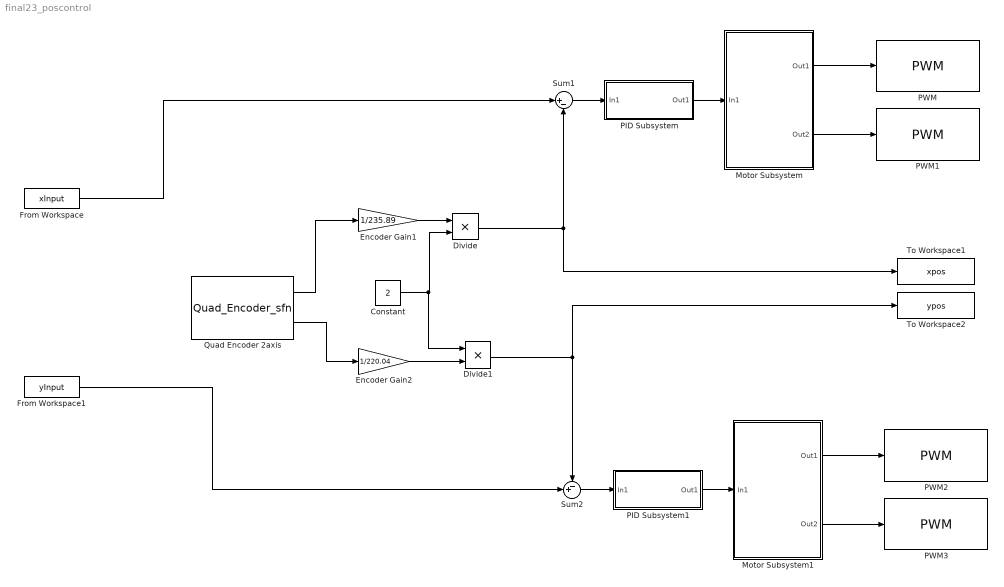
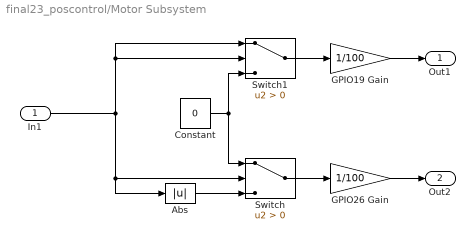
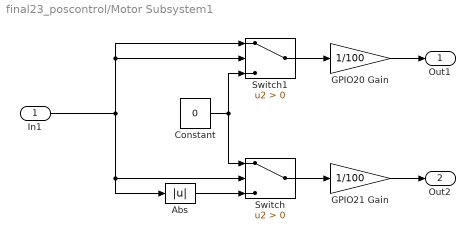
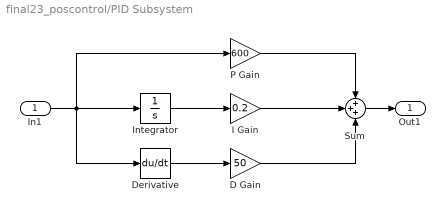
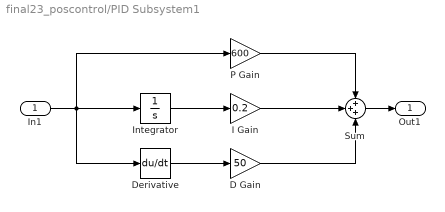
/*
 * final23_poscontrol.c
 *
 * Academic License - for use in teaching, academic research, and meeting
 * course requirements at degree granting institutions only.  Not for
 * government, commercial, or other organizational use.
 *
 * Code generation for model "final23_poscontrol".
 *
 * Model version              : 1.38
 * Simulink Coder version : 9.5 (R2021a) 14-Nov-2020
 * C source code generated on : Tue Dec 12 15:49:32 2023
 *
 * Target selection: ert.tlc
 * Note: GRT includes extra infrastructure and instrumentation for prototyping
 * Embedded hardware selection: ARM Compatible->ARM Cortex
 * Code generation objectives: Unspecified
 * Validation result: Not run
 */

#include "final23_poscontrol.h"
#include "final23_poscontrol_private.h"

/* Block signals (default storage) */
B_final23_poscontrol_T final23_poscontrol_B;

/* Continuous states */
X_final23_poscontrol_T final23_poscontrol_X;

/* Block states (default storage) */
DW_final23_poscontrol_T final23_poscontrol_DW;

/* Real-time model */
static RT_MODEL_final23_poscontrol_T final23_poscontrol_M_;
RT_MODEL_final23_poscontrol_T *const final23_poscontrol_M =
  &final23_poscontrol_M_;

/*
 * This function updates continuous states using the ODE3 fixed-step
 * solver algorithm
 */
static void rt_ertODEUpdateContinuousStates(RTWSolverInfo *si )
{
  /* Solver Matrices */
  static const real_T rt_ODE3_A[3] = {
    1.0/2.0, 3.0/4.0, 1.0
  };

  static const real_T rt_ODE3_B[3][3] = {
    { 1.0/2.0, 0.0, 0.0 },

    { 0.0, 3.0/4.0, 0.0 },

    { 2.0/9.0, 1.0/3.0, 4.0/9.0 }
  };

  time_T t = rtsiGetT(si);
  time_T tnew = rtsiGetSolverStopTime(si);
  time_T h = rtsiGetStepSize(si);
  real_T *x = rtsiGetContStates(si);
  ODE3_IntgData *id = (ODE3_IntgData *)rtsiGetSolverData(si);
  real_T *y = id->y;
  real_T *f0 = id->f[0];
  real_T *f1 = id->f[1];
  real_T *f2 = id->f[2];
  real_T hB[3];
  int_T i;
  int_T nXc = 2;
  rtsiSetSimTimeStep(si,MINOR_TIME_STEP);

  /* Save the state values at time t in y, we'll use x as ynew. */
  (void) memcpy(y, x,
                (uint_T)nXc*sizeof(real_T));

  /* Assumes that rtsiSetT and ModelOutputs are up-to-date */
  /* f0 = f(t,y) */
  rtsiSetdX(si, f0);
  final23_poscontrol_derivatives();

  /* f(:,2) = feval(odefile, t + hA(1), y + f*hB(:,1), args(:)(*)); */
  hB[0] = h * rt_ODE3_B[0][0];
  for (i = 0; i < nXc; i++) {
    x[i] = y[i] + (f0[i]*hB[0]);
  }

  rtsiSetT(si, t + h*rt_ODE3_A[0]);
  rtsiSetdX(si, f1);
  final23_poscontrol_step();
  final23_poscontrol_derivatives();

  /* f(:,3) = feval(odefile, t + hA(2), y + f*hB(:,2), args(:)(*)); */
  for (i = 0; i <= 1; i++) {
    hB[i] = h * rt_ODE3_B[1][i];
  }

  for (i = 0; i < nXc; i++) {
    x[i] = y[i] + (f0[i]*hB[0] + f1[i]*hB[1]);
  }

  rtsiSetT(si, t + h*rt_ODE3_A[1]);
  rtsiSetdX(si, f2);
  final23_poscontrol_step();
  final23_poscontrol_derivatives();

  /* tnew = t + hA(3);
     ynew = y + f*hB(:,3); */
  for (i = 0; i <= 2; i++) {
    hB[i] = h * rt_ODE3_B[2][i];
  }

  for (i = 0; i < nXc; i++) {
    x[i] = y[i] + (f0[i]*hB[0] + f1[i]*hB[1] + f2[i]*hB[2]);
  }

  rtsiSetT(si, tnew);
  rtsiSetSimTimeStep(si,MAJOR_TIME_STEP);
}

/* Model step function */
void final23_poscontrol_step(void)
{
  if (rtmIsMajorTimeStep(final23_poscontrol_M)) {
    /* set solver stop time */
    if (!(final23_poscontrol_M->Timing.clockTick0+1)) {
      rtsiSetSolverStopTime(&final23_poscontrol_M->solverInfo,
                            ((final23_poscontrol_M->Timing.clockTickH0 + 1) *
        final23_poscontrol_M->Timing.stepSize0 * 4294967296.0));
    } else {
      rtsiSetSolverStopTime(&final23_poscontrol_M->solverInfo,
                            ((final23_poscontrol_M->Timing.clockTick0 + 1) *
        final23_poscontrol_M->Timing.stepSize0 +
        final23_poscontrol_M->Timing.clockTickH0 *
        final23_poscontrol_M->Timing.stepSize0 * 4294967296.0));
    }
  }                                    /* end MajorTimeStep */

  /* Update absolute time of base rate at minor time step */
  if (rtmIsMinorTimeStep(final23_poscontrol_M)) {
    final23_poscontrol_M->Timing.t[0] = rtsiGetT
      (&final23_poscontrol_M->solverInfo);
  }

  {
    real_T rtb_Sum;
    real_T rtb_Sum_p;
    real_T rtb_Switch;
    real_T *lastU;
    if (rtmIsMajorTimeStep(final23_poscontrol_M)) {
      /* FromWorkspace: '<Root>/From Workspace' */
      {
        real_T *pDataValues = (real_T *)
          final23_poscontrol_DW.FromWorkspace_PWORK.DataPtr;
        real_T *pTimeValues = (real_T *)
          final23_poscontrol_DW.FromWorkspace_PWORK.TimePtr;
        int_T currTimeIndex =
          final23_poscontrol_DW.FromWorkspace_IWORK.PrevIndex;
        real_T t = (((final23_poscontrol_M->Timing.clockTick1+
                      final23_poscontrol_M->Timing.clockTickH1* 4294967296.0)) *
                    0.001);

        /* Get index */
        if (t <= pTimeValues[0]) {
          currTimeIndex = 0;
        } else if (t >= pTimeValues[9428]) {
          currTimeIndex = 9427;
        } else {
          if (t < pTimeValues[currTimeIndex]) {
            while (t < pTimeValues[currTimeIndex]) {
              currTimeIndex--;
            }
          } else {
            while (t >= pTimeValues[currTimeIndex + 1]) {
              currTimeIndex++;
            }
          }
        }

        final23_poscontrol_DW.FromWorkspace_IWORK.PrevIndex = currTimeIndex;

        /* Post output */
        {
          real_T t1 = pTimeValues[currTimeIndex];
          real_T t2 = pTimeValues[currTimeIndex + 1];
          if (t1 == t2) {
            if (t < t1) {
              final23_poscontrol_B.FromWorkspace = pDataValues[currTimeIndex];
            } else {
              final23_poscontrol_B.FromWorkspace = pDataValues[currTimeIndex + 1];
            }
          } else {
            real_T f1 = (t2 - t) / (t2 - t1);
            real_T f2 = 1.0 - f1;
            real_T d1;
            real_T d2;
            int_T TimeIndex = currTimeIndex;
            d1 = pDataValues[TimeIndex];
            d2 = pDataValues[TimeIndex + 1];
            final23_poscontrol_B.FromWorkspace = (real_T) rtInterpolate(d1, d2,
              f1, f2);
            pDataValues += 9429;
          }
        }
      }
    }

    /* S-Function (Quad_Encoder_sfn): '<Root>/Quad Encoder 2axis' */
    Quad_Encoder_sfn_Outputs_wrapper(&final23_poscontrol_B.QuadEncoder2axis_o1,
      &final23_poscontrol_B.QuadEncoder2axis_o2,
      &final23_poscontrol_DW.QuadEncoder2axis_DSTATE,
      &final23_poscontrol_P.QuadEncoder2axis_P1, 1,
      &final23_poscontrol_P.QuadEncoder2axis_P2, 1,
      &final23_poscontrol_P.QuadEncoder2axis_P3, 1,
      &final23_poscontrol_P.QuadEncoder2axis_P4, 1,
      &final23_poscontrol_P.QuadEncoder2axis_P5, 1,
      &final23_poscontrol_P.QuadEncoder2axis_P6, 1);

    /* Gain: '<Root>/Encoder Gain1' */
    final23_poscontrol_B.EncoderGain1 = (int64_T)
      final23_poscontrol_P.EncoderGain1_Gain *
      final23_poscontrol_B.QuadEncoder2axis_o1;

    /* Product: '<Root>/Divide' incorporates:
     *  Constant: '<Root>/Constant'
     *  Gain: '<Root>/Encoder Gain1'
     */
    final23_poscontrol_B.Divide = (real_T)final23_poscontrol_B.EncoderGain1 *
      3.637978807091713E-12 * final23_poscontrol_P.Constant_Value;

    /* Sum: '<Root>/Sum1' */
    final23_poscontrol_B.Sum1 = final23_poscontrol_B.FromWorkspace -
      final23_poscontrol_B.Divide;

    /* Derivative: '<S3>/Derivative' incorporates:
     *  Derivative: '<S4>/Derivative'
     */
    rtb_Sum_p = final23_poscontrol_M->Timing.t[0];
    if ((final23_poscontrol_DW.TimeStampA >= rtb_Sum_p) &&
        (final23_poscontrol_DW.TimeStampB >= rtb_Sum_p)) {
      rtb_Switch = 0.0;
    } else {
      rtb_Switch = final23_poscontrol_DW.TimeStampA;
      lastU = &final23_poscontrol_DW.LastUAtTimeA;
      if (final23_poscontrol_DW.TimeStampA < final23_poscontrol_DW.TimeStampB) {
        if (final23_poscontrol_DW.TimeStampB < rtb_Sum_p) {
          rtb_Switch = final23_poscontrol_DW.TimeStampB;
          lastU = &final23_poscontrol_DW.LastUAtTimeB;
        }
      } else if (final23_poscontrol_DW.TimeStampA >= rtb_Sum_p) {
        rtb_Switch = final23_poscontrol_DW.TimeStampB;
        lastU = &final23_poscontrol_DW.LastUAtTimeB;
      }

      rtb_Switch = (final23_poscontrol_B.Sum1 - *lastU) / (rtb_Sum_p -
        rtb_Switch);
    }

    /* End of Derivative: '<S3>/Derivative' */

    /* Sum: '<S3>/Sum' incorporates:
     *  Gain: '<S3>/D Gain'
     *  Gain: '<S3>/I Gain'
     *  Gain: '<S3>/P Gain'
     *  Integrator: '<S3>/Integrator'
     */
    rtb_Sum = (final23_poscontrol_P.PGain_Gain * final23_poscontrol_B.Sum1 +
               final23_poscontrol_P.IGain_Gain *
               final23_poscontrol_X.Integrator_CSTATE) +
      final23_poscontrol_P.DGain_Gain * rtb_Switch;

    /* Switch: '<S1>/Switch1' incorporates:
     *  Constant: '<S1>/Constant'
     */
    if (rtb_Sum > final23_poscontrol_P.Switch1_Threshold) {
      rtb_Switch = rtb_Sum;
    } else {
      rtb_Switch = final23_poscontrol_P.Constant_Value_d;
    }

    /* End of Switch: '<S1>/Switch1' */

    /* Gain: '<S1>/GPIO19 Gain' */
    rtb_Switch *= final23_poscontrol_P.GPIO19Gain_Gain;

    /* MATLABSystem: '<Root>/PWM' */
    if (!(rtb_Switch < 1.0)) {
      rtb_Switch = 1.0;
    }

    if (!(rtb_Switch > 0.0)) {
      rtb_Switch = 0.0;
    }

    EXT_PWMBlock_setDutyCycle(final23_poscontrol_DW.obj_g.PinNumber, rtb_Switch);

    /* End of MATLABSystem: '<Root>/PWM' */

    /* Switch: '<S1>/Switch' incorporates:
     *  Abs: '<S1>/Abs'
     *  Constant: '<S1>/Constant'
     */
    if (rtb_Sum > final23_poscontrol_P.Switch_Threshold) {
      rtb_Sum = final23_poscontrol_P.Constant_Value_d;
    } else {
      rtb_Sum = fabs(rtb_Sum);
    }

    /* End of Switch: '<S1>/Switch' */

    /* Gain: '<S1>/GPIO26 Gain' */
    rtb_Switch = final23_poscontrol_P.GPIO26Gain_Gain * rtb_Sum;

    /* MATLABSystem: '<Root>/PWM1' */
    if (!(rtb_Switch < 1.0)) {
      rtb_Switch = 1.0;
    }

    if (!(rtb_Switch > 0.0)) {
      rtb_Switch = 0.0;
    }

    EXT_PWMBlock_setDutyCycle(final23_poscontrol_DW.obj_e.PinNumber, rtb_Switch);

    /* End of MATLABSystem: '<Root>/PWM1' */
    if (rtmIsMajorTimeStep(final23_poscontrol_M)) {
    }

    /* Gain: '<Root>/Encoder Gain2' */
    final23_poscontrol_B.EncoderGain2 = (int64_T)
      final23_poscontrol_P.EncoderGain2_Gain *
      final23_poscontrol_B.QuadEncoder2axis_o2;

    /* Product: '<Root>/Divide1' incorporates:
     *  Constant: '<Root>/Constant'
     *  Gain: '<Root>/Encoder Gain2'
     */
    final23_poscontrol_B.Divide1 = (real_T)final23_poscontrol_B.EncoderGain2 *
      3.637978807091713E-12 * final23_poscontrol_P.Constant_Value;
    if (rtmIsMajorTimeStep(final23_poscontrol_M)) {
      /* FromWorkspace: '<Root>/From Workspace1' */
      {
        real_T *pDataValues = (real_T *)
          final23_poscontrol_DW.FromWorkspace1_PWORK.DataPtr;
        real_T *pTimeValues = (real_T *)
          final23_poscontrol_DW.FromWorkspace1_PWORK.TimePtr;
        int_T currTimeIndex =
          final23_poscontrol_DW.FromWorkspace1_IWORK.PrevIndex;
        real_T t = (((final23_poscontrol_M->Timing.clockTick1+
                      final23_poscontrol_M->Timing.clockTickH1* 4294967296.0)) *
                    0.001);

        /* Get index */
        if (t <= pTimeValues[0]) {
          currTimeIndex = 0;
        } else if (t >= pTimeValues[9428]) {
          currTimeIndex = 9427;
        } else {
          if (t < pTimeValues[currTimeIndex]) {
            while (t < pTimeValues[currTimeIndex]) {
              currTimeIndex--;
            }
          } else {
            while (t >= pTimeValues[currTimeIndex + 1]) {
              currTimeIndex++;
            }
          }
        }

        final23_poscontrol_DW.FromWorkspace1_IWORK.PrevIndex = currTimeIndex;

        /* Post output */
        {
          real_T t1 = pTimeValues[currTimeIndex];
          real_T t2 = pTimeValues[currTimeIndex + 1];
          if (t1 == t2) {
            if (t < t1) {
              final23_poscontrol_B.FromWorkspace1 = pDataValues[currTimeIndex];
            } else {
              final23_poscontrol_B.FromWorkspace1 = pDataValues[currTimeIndex +
                1];
            }
          } else {
            real_T f1 = (t2 - t) / (t2 - t1);
            real_T f2 = 1.0 - f1;
            real_T d1;
            real_T d2;
            int_T TimeIndex = currTimeIndex;
            d1 = pDataValues[TimeIndex];
            d2 = pDataValues[TimeIndex + 1];
            final23_poscontrol_B.FromWorkspace1 = (real_T) rtInterpolate(d1, d2,
              f1, f2);
            pDataValues += 9429;
          }
        }
      }
    }

    /* Sum: '<Root>/Sum2' */
    final23_poscontrol_B.Sum2 = final23_poscontrol_B.FromWorkspace1 -
      final23_poscontrol_B.Divide1;

    /* Derivative: '<S4>/Derivative' */
    if ((final23_poscontrol_DW.TimeStampA_k >= rtb_Sum_p) &&
        (final23_poscontrol_DW.TimeStampB_k >= rtb_Sum_p)) {
      rtb_Switch = 0.0;
    } else {
      rtb_Switch = final23_poscontrol_DW.TimeStampA_k;
      lastU = &final23_poscontrol_DW.LastUAtTimeA_o;
      if (final23_poscontrol_DW.TimeStampA_k <
          final23_poscontrol_DW.TimeStampB_k) {
        if (final23_poscontrol_DW.TimeStampB_k < rtb_Sum_p) {
          rtb_Switch = final23_poscontrol_DW.TimeStampB_k;
          lastU = &final23_poscontrol_DW.LastUAtTimeB_n;
        }
      } else if (final23_poscontrol_DW.TimeStampA_k >= rtb_Sum_p) {
        rtb_Switch = final23_poscontrol_DW.TimeStampB_k;
        lastU = &final23_poscontrol_DW.LastUAtTimeB_n;
      }

      rtb_Switch = (final23_poscontrol_B.Sum2 - *lastU) / (rtb_Sum_p -
        rtb_Switch);
    }

    /* Sum: '<S4>/Sum' incorporates:
     *  Gain: '<S4>/D Gain'
     *  Gain: '<S4>/I Gain'
     *  Gain: '<S4>/P Gain'
     *  Integrator: '<S4>/Integrator'
     */
    rtb_Sum_p = (final23_poscontrol_P.PGain_Gain_b * final23_poscontrol_B.Sum2 +
                 final23_poscontrol_P.IGain_Gain_d *
                 final23_poscontrol_X.Integrator_CSTATE_l) +
      final23_poscontrol_P.DGain_Gain_k * rtb_Switch;

    /* Switch: '<S2>/Switch1' incorporates:
     *  Constant: '<S2>/Constant'
     */
    if (rtb_Sum_p > final23_poscontrol_P.Switch1_Threshold_c) {
      rtb_Switch = rtb_Sum_p;
    } else {
      rtb_Switch = final23_poscontrol_P.Constant_Value_e;
    }

    /* End of Switch: '<S2>/Switch1' */

    /* Gain: '<S2>/GPIO20 Gain' */
    rtb_Switch *= final23_poscontrol_P.GPIO20Gain_Gain;

    /* MATLABSystem: '<Root>/PWM2' */
    if (!(rtb_Switch < 1.0)) {
      rtb_Switch = 1.0;
    }

    if (!(rtb_Switch > 0.0)) {
      rtb_Switch = 0.0;
    }

    EXT_PWMBlock_setDutyCycle(final23_poscontrol_DW.obj_p.PinNumber, rtb_Switch);

    /* End of MATLABSystem: '<Root>/PWM2' */

    /* Switch: '<S2>/Switch' incorporates:
     *  Abs: '<S2>/Abs'
     *  Constant: '<S2>/Constant'
     */
    if (rtb_Sum_p > final23_poscontrol_P.Switch_Threshold_m) {
      rtb_Sum_p = final23_poscontrol_P.Constant_Value_e;
    } else {
      rtb_Sum_p = fabs(rtb_Sum_p);
    }

    /* End of Switch: '<S2>/Switch' */

    /* Gain: '<S2>/GPIO21 Gain' */
    rtb_Switch = final23_poscontrol_P.GPIO21Gain_Gain * rtb_Sum_p;

    /* MATLABSystem: '<Root>/PWM3' */
    if (!(rtb_Switch < 1.0)) {
      rtb_Switch = 1.0;
    }

    if (!(rtb_Switch > 0.0)) {
      rtb_Switch = 0.0;
    }

    EXT_PWMBlock_setDutyCycle(final23_poscontrol_DW.obj.PinNumber, rtb_Switch);

    /* End of MATLABSystem: '<Root>/PWM3' */
    if (rtmIsMajorTimeStep(final23_poscontrol_M)) {
    }
  }

  if (rtmIsMajorTimeStep(final23_poscontrol_M)) {
    real_T *lastU;

    /* Update for S-Function (Quad_Encoder_sfn): '<Root>/Quad Encoder 2axis' */

    /* S-Function "Quad_Encoder_sfn_wrapper" Block: <Root>/Quad Encoder 2axis */
    Quad_Encoder_sfn_Update_wrapper(&final23_poscontrol_B.QuadEncoder2axis_o1,
      &final23_poscontrol_B.QuadEncoder2axis_o2,
      &final23_poscontrol_DW.QuadEncoder2axis_DSTATE,
      &final23_poscontrol_P.QuadEncoder2axis_P1, 1,
      &final23_poscontrol_P.QuadEncoder2axis_P2, 1,
      &final23_poscontrol_P.QuadEncoder2axis_P3, 1,
      &final23_poscontrol_P.QuadEncoder2axis_P4, 1,
      &final23_poscontrol_P.QuadEncoder2axis_P5, 1,
      &final23_poscontrol_P.QuadEncoder2axis_P6, 1);

    /* Update for Derivative: '<S3>/Derivative' */
    if (final23_poscontrol_DW.TimeStampA == (rtInf)) {
      final23_poscontrol_DW.TimeStampA = final23_poscontrol_M->Timing.t[0];
      lastU = &final23_poscontrol_DW.LastUAtTimeA;
    } else if (final23_poscontrol_DW.TimeStampB == (rtInf)) {
      final23_poscontrol_DW.TimeStampB = final23_poscontrol_M->Timing.t[0];
      lastU = &final23_poscontrol_DW.LastUAtTimeB;
    } else if (final23_poscontrol_DW.TimeStampA <
               final23_poscontrol_DW.TimeStampB) {
      final23_poscontrol_DW.TimeStampA = final23_poscontrol_M->Timing.t[0];
      lastU = &final23_poscontrol_DW.LastUAtTimeA;
    } else {
      final23_poscontrol_DW.TimeStampB = final23_poscontrol_M->Timing.t[0];
      lastU = &final23_poscontrol_DW.LastUAtTimeB;
    }

    *lastU = final23_poscontrol_B.Sum1;

    /* End of Update for Derivative: '<S3>/Derivative' */

    /* Update for Derivative: '<S4>/Derivative' */
    if (final23_poscontrol_DW.TimeStampA_k == (rtInf)) {
      final23_poscontrol_DW.TimeStampA_k = final23_poscontrol_M->Timing.t[0];
      lastU = &final23_poscontrol_DW.LastUAtTimeA_o;
    } else if (final23_poscontrol_DW.TimeStampB_k == (rtInf)) {
      final23_poscontrol_DW.TimeStampB_k = final23_poscontrol_M->Timing.t[0];
      lastU = &final23_poscontrol_DW.LastUAtTimeB_n;
    } else if (final23_poscontrol_DW.TimeStampA_k <
               final23_poscontrol_DW.TimeStampB_k) {
      final23_poscontrol_DW.TimeStampA_k = final23_poscontrol_M->Timing.t[0];
      lastU = &final23_poscontrol_DW.LastUAtTimeA_o;
    } else {
      final23_poscontrol_DW.TimeStampB_k = final23_poscontrol_M->Timing.t[0];
      lastU = &final23_poscontrol_DW.LastUAtTimeB_n;
    }

    *lastU = final23_poscontrol_B.Sum2;

    /* End of Update for Derivative: '<S4>/Derivative' */

    /* External mode */
    rtExtModeUploadCheckTrigger(2);

    {                                  /* Sample time: [0.0s, 0.0s] */
      rtExtModeUpload(0, (real_T)final23_poscontrol_M->Timing.t[0]);
    }

    if (rtmIsMajorTimeStep(final23_poscontrol_M)) {/* Sample time: [0.001s, 0.0s] */
      rtExtModeUpload(1, (real_T)(((final23_poscontrol_M->Timing.clockTick1+
        final23_poscontrol_M->Timing.clockTickH1* 4294967296.0)) * 0.001));
    }
  }                                    /* end MajorTimeStep */

  if (rtmIsMajorTimeStep(final23_poscontrol_M)) {
    /* signal main to stop simulation */
    {                                  /* Sample time: [0.0s, 0.0s] */
      if ((rtmGetTFinal(final23_poscontrol_M)!=-1) &&
          !((rtmGetTFinal(final23_poscontrol_M)-
             (((final23_poscontrol_M->Timing.clockTick1+
                final23_poscontrol_M->Timing.clockTickH1* 4294967296.0)) * 0.001))
            > (((final23_poscontrol_M->Timing.clockTick1+
                 final23_poscontrol_M->Timing.clockTickH1* 4294967296.0)) *
               0.001) * (DBL_EPSILON))) {
        rtmSetErrorStatus(final23_poscontrol_M, "Simulation finished");
      }

      if (rtmGetStopRequested(final23_poscontrol_M)) {
        rtmSetErrorStatus(final23_poscontrol_M, "Simulation finished");
      }
    }

    rt_ertODEUpdateContinuousStates(&final23_poscontrol_M->solverInfo);

    /* Update absolute time for base rate */
    /* The "clockTick0" counts the number of times the code of this task has
     * been executed. The absolute time is the multiplication of "clockTick0"
     * and "Timing.stepSize0". Size of "clockTick0" ensures timer will not
     * overflow during the application lifespan selected.
     * Timer of this task consists of two 32 bit unsigned integers.
     * The two integers represent the low bits Timing.clockTick0 and the high bits
     * Timing.clockTickH0. When the low bit overflows to 0, the high bits increment.
     */
    if (!(++final23_poscontrol_M->Timing.clockTick0)) {
      ++final23_poscontrol_M->Timing.clockTickH0;
    }

    final23_poscontrol_M->Timing.t[0] = rtsiGetSolverStopTime
      (&final23_poscontrol_M->solverInfo);

    {
      /* Update absolute timer for sample time: [0.001s, 0.0s] */
      /* The "clockTick1" counts the number of times the code of this task has
       * been executed. The resolution of this integer timer is 0.001, which is the step size
       * of the task. Size of "clockTick1" ensures timer will not overflow during the
       * application lifespan selected.
       * Timer of this task consists of two 32 bit unsigned integers.
       * The two integers represent the low bits Timing.clockTick1 and the high bits
       * Timing.clockTickH1. When the low bit overflows to 0, the high bits increment.
       */
      final23_poscontrol_M->Timing.clockTick1++;
      if (!final23_poscontrol_M->Timing.clockTick1) {
        final23_poscontrol_M->Timing.clockTickH1++;
      }
    }
  }                                    /* end MajorTimeStep */
}
